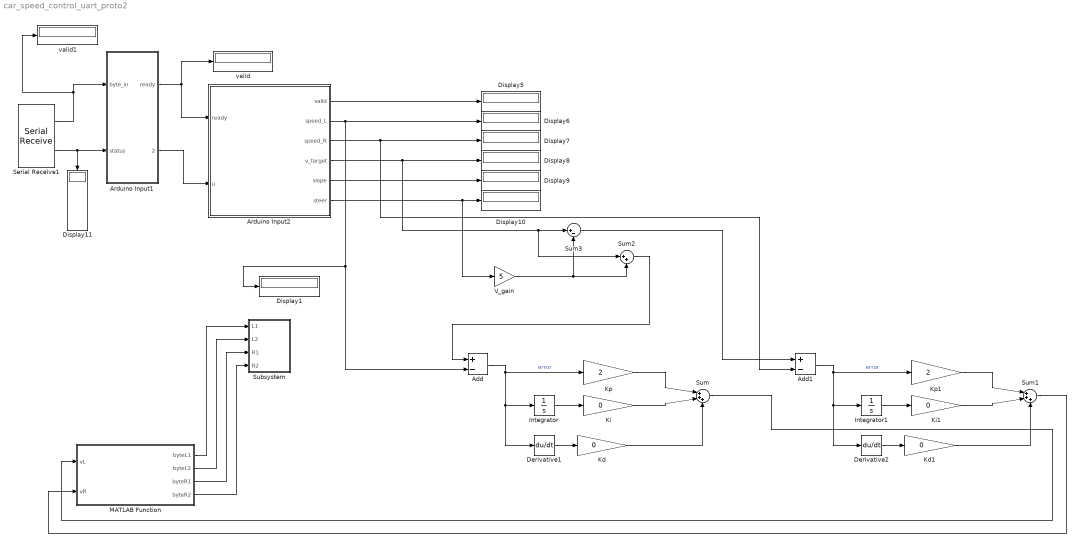
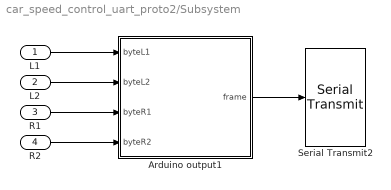
== matlab function car_speed_control_uart_proto2/MATLAB Function ==
function [byteL1, byteL2, byteR1, byteR2] = encode_pwm_duty(vL, vR)
% 입력:
%   vL, vR: mm/s 단위의 속도값 (saturation은 외부에서 처리)
% 출력:
%   byteL1, byteL2: 왼쪽 듀티 (LSB, MSB)
%   byteR1, byteR2: 오른쪽 듀티 (LSB, MSB)

%#codegen
min_duty = 2000;
max_duty = 4000;
v_max = 300;  % 최대 속도(mm/s)

% 왼쪽 듀티 계산
dutyL = uint16(min_duty + (vL / v_max) * (max_duty - min_duty));
byteL2 = bitand(dutyL, 255);         % LSB
byteL1 = bitshift(dutyL, -8);        % MSB

% 오른쪽 듀티 계산
dutyR = uint16(min_duty + (vR / v_max) * (max_duty - min_duty));
byteR2 = bitand(dutyR, 255);
byteR1 = bitshift(dutyR, -8);

== matlab function car_speed_control_uart_proto2/Arduino Input2 ==
function [valid, speed_L, speed_R, v_target, slope, steer] = parseUART_persistent(ready, u)
% UART 패킷 파서 (persistent 방식으로 이전 값 유지)
% u: [10x1] uint8, 패킷 데이터
% ready: 패킷 유효 신호

%#codegen

% 이전 출력값 저장용 persistent 변수
persistent p_valid p_speed_L p_speed_R p_v_target p_slope p_steer

% 초기화 (최초 실행 시)
if isempty(p_valid)
    p_valid = false;
    p_speed_L = 0.0;
    p_speed_R = 0.0;
    p_v_target = 0.0;
    p_slope = uint8(0);
    p_steer = int8(0);
end

% 새로운 데이터가 들어왔을 경우만 업데이트
if ready == 1
        p_valid = true;
        p_speed_L = (double(u(2)) + double(u(3))/100) * 10;
        p_speed_R = (double(u(4)) + double(u(5))/100) * 10;
        p_v_target = double(u(6))*10;
        p_slope = u(7);
        p_steer = int8(u(8));
end

% 항상 마지막 유효 출력 반환
valid     = p_valid;
speed_L   = p_speed_L;
speed_R   = p_speed_R;
v_target  = p_v_target;
slope     = p_slope;
steer     = p_steer;

== matlab function car_speed_control_uart_proto2/Arduino Input1 ==
function [ready, data_out] = uart_parser(byte_in, status)
% UART 프레임 수신기 (Start Byte = 0xAA, Total = 10 bytes)
% 입력: byte_in - 1바이트씩 들어오는 uint8
% 입력: status - Serial Receive의 상태 (1이면 수신 성공)
% 출력: ready - 1이면 패킷 파싱 완료
% 출력: data_out - [1x10] uint8, 패킷 데이터

persistent buffer count collecting

if isempty(buffer)
    buffer = zeros(1, 10, 'uint8');
    count = 0;
    collecting = false;
end

ready = false;
data_out = zeros(1,10,'uint8');

if status == 1
    if ~collecting
        % 아직 수집 시작 전 → start byte 찾기
        if byte_in == hex2dec('AA')
            buffer(1) = byte_in;
            count = 1;
            collecting = true;
        end
    else
        % 수집 중
        count = count + 1;
        buffer(count) = byte_in;

        if count == 10
            data_out = buffer;
            ready = true;
            count = 0;
            collecting = false;
        end
    end
end

== matlab function car_speed_control_uart_proto2/Subsystem/Arduino output1 ==
function frame = makeFrame(byteL1, byteL2, byteR1, byteR2)
% 입력:
%   byteL1, byteL2 : 왼쪽 듀티 (LSB, MSB)
%   byteR1, byteR2 : 오른쪽 듀티 (LSB, MSB)
% 출력:
%   frame: 5-byte UART 프레임 [L_LSB, L_MSB, R_LSB, R_MSB, CRC]

% CRC 계산: 256 - mod(sum(data), 256)
data_sum = double(byteL1) + double(byteL2) + double(byteR1) + double(byteR2);
crc = mod(256 - mod(data_sum, 256), 256);

% 프레임 구성
frame = uint8([byteL1, byteL2, byteR1, byteR2, crc]);
end

/*
 * Academic License - for use in teaching, academic research, and meeting
 * course requirements at degree granting institutions only.  Not for
 * government, commercial, or other organizational use.
 *
 * File: car_speed_control_uart_proto2.c
 *
 * Code generated for Simulink model 'car_speed_control_uart_proto2'.
 *
 * Model version                  : 1.56
 * Simulink Coder version         : 24.2 (R2024b) 21-Jun-2024
 * C/C++ source code generated on : Fri May 23 18:32:13 2025
 *
 * Target selection: ert.tlc
 * Embedded hardware selection: Atmel->AVR
 * Code generation objectives: Unspecified
 * Validation result: Not run
 */

#include "car_speed_control_uart_proto2.h"
#include "rtwtypes.h"
#include "car_speed_control_uart_proto2_private.h"
#include <stddef.h>
#include "rt_nonfinite.h"
#include <math.h>

/* Block signals (default storage) */
B_car_speed_control_uart_prot_T car_speed_control_uart_proto2_B;

/* Continuous states */
X_car_speed_control_uart_prot_T car_speed_control_uart_proto2_X;

/* Disabled State Vector */
XDis_car_speed_control_uart_p_T car_speed_control_uart_pro_XDis;

/* Block states (default storage) */
DW_car_speed_control_uart_pro_T car_speed_control_uart_proto_DW;

/* Real-time model */
static RT_MODEL_car_speed_control_ua_T car_speed_control_uart_proto_M_;
RT_MODEL_car_speed_control_ua_T *const car_speed_control_uart_proto_M =
  &car_speed_control_uart_proto_M_;

/* Forward declaration for local functions */
static real_T car_speed_control_uart_prot_mod(real_T x);
static void rate_monotonic_scheduler(void);

/*
 * Set which subrates need to run this base step (base rate always runs).
 * This function must be called prior to calling the model step function
 * in order to remember which rates need to run this base step.  The
 * buffering of events allows for overlapping preemption.
 */
void car_speed_control_uart_proto2_SetEventsForThisBaseStep(boolean_T
  *eventFlags)
{
  /* Task runs when its counter is zero, computed via rtmStepTask macro */
  eventFlags[2] = ((boolean_T)rtmStepTask(car_speed_control_uart_proto_M, 2));
}

/*
 *         This function updates active task flag for each subrate
 *         and rate transition flags for tasks that exchange data.
 *         The function assumes rate-monotonic multitasking scheduler.
 *         The function must be called at model base rate so that
 *         the generated code self-manages all its subrates and rate
 *         transition flags.
 */
static void rate_monotonic_scheduler(void)
{
  /* To ensure a deterministic data transfer between two rates,
   * data is transferred at the priority of a fast task and the frequency
   * of the slow task.  The following flags indicate when the data transfer
   * happens.  That is, a rate interaction flag is set true when both rates
   * will run, and false otherwise.
   */

  /* tid 1 shares data with slower tid rate: 2 */
  if (car_speed_control_uart_proto_M->Timing.TaskCounters.TID[1] == 0) {
    car_speed_control_uart_proto_M->Timing.RateInteraction.TID1_2 =
      (car_speed_control_uart_proto_M->Timing.TaskCounters.TID[2] == 0);
  }

  /* Compute which subrates run during the next base time step.  Subrates
   * are an integer multiple of the base rate counter.  Therefore, the subtask
   * counter is reset when it reaches its limit (zero means run).
   */
  (car_speed_control_uart_proto_M->Timing.TaskCounters.TID[2])++;
  if ((car_speed_control_uart_proto_M->Timing.TaskCounters.TID[2]) > 9) {/* Sample time: [0.1s, 0.0s] */
    car_speed_control_uart_proto_M->Timing.TaskCounters.TID[2] = 0;
  }
}

/*
 * This function updates continuous states using the ODE3 fixed-step
 * solver algorithm
 */
static void rt_ertODEUpdateContinuousStates(RTWSolverInfo *si )
{
  /* Solver Matrices */
  static const real_T rt_ODE3_A[3] = {
    1.0/2.0, 3.0/4.0, 1.0
  };

  static const real_T rt_ODE3_B[3][3] = {
    { 1.0/2.0, 0.0, 0.0 },

    { 0.0, 3.0/4.0, 0.0 },

    { 2.0/9.0, 1.0/3.0, 4.0/9.0 }
  };

  time_T t = rtsiGetT(si);
  time_T tnew = rtsiGetSolverStopTime(si);
  time_T h = rtsiGetStepSize(si);
  real_T *x = rtsiGetContStates(si);
  ODE3_IntgData *id = (ODE3_IntgData *)rtsiGetSolverData(si);
  real_T *y = id->y;
  real_T *f0 = id->f[0];
  real_T *f1 = id->f[1];
  real_T *f2 = id->f[2];
  real_T hB[3];
  int_T i;
  int_T nXc = 2;
  rtsiSetSimTimeStep(si,MINOR_TIME_STEP);

  /* Save the state values at time t in y, we'll use x as ynew. */
  (void) memcpy(y, x,
                (uint_T)nXc*sizeof(real_T));

  /* Assumes that rtsiSetT and ModelOutputs are up-to-date */
  /* f0 = f(t,y) */
  rtsiSetdX(si, f0);
  car_speed_control_uart_proto2_derivatives();

  /* f(:,2) = feval(odefile, t + hA(1), y + f*hB(:,1), args(:)(*)); */
  hB[0] = h * rt_ODE3_B[0][0];
  for (i = 0; i < nXc; i++) {
    x[i] = y[i] + (f0[i]*hB[0]);
  }

  rtsiSetT(si, t + h*rt_ODE3_A[0]);
  rtsiSetdX(si, f1);
  car_speed_control_uart_proto2_step0();
  car_speed_control_uart_proto2_derivatives();

  /* f(:,3) = feval(odefile, t + hA(2), y + f*hB(:,2), args(:)(*)); */
  for (i = 0; i <= 1; i++) {
    hB[i] = h * rt_ODE3_B[1][i];
  }

  for (i = 0; i < nXc; i++) {
    x[i] = y[i] + (f0[i]*hB[0] + f1[i]*hB[1]);
  }

  rtsiSetT(si, t + h*rt_ODE3_A[1]);
  rtsiSetdX(si, f2);
  car_speed_control_uart_proto2_step0();
  car_speed_control_uart_proto2_derivatives();

  /* tnew = t + hA(3);
     ynew = y + f*hB(:,3); */
  for (i = 0; i <= 2; i++) {
    hB[i] = h * rt_ODE3_B[2][i];
  }

  for (i = 0; i < nXc; i++) {
    x[i] = y[i] + (f0[i]*hB[0] + f1[i]*hB[1] + f2[i]*hB[2]);
  }

  rtsiSetT(si, tnew);
  rtsiSetSimTimeStep(si,MAJOR_TIME_STEP);
}

real_T rt_roundd_snf(real_T u)
{
  real_T y;
  if (fabs(u) < 4.503599627370496E+15) {
    if (u >= 0.5) {
      y = floor(u + 0.5);
    } else if (u > -0.5) {
      y = u * 0.0;
    } else {
      y = ceil(u - 0.5);
    }
  } else {
    y = u;
  }

  return y;
}

/* Function for MATLAB Function: '<S4>/Arduino output1' */
static real_T car_speed_control_uart_prot_mod(real_T x)
{
  real_T r;
  if (rtIsNaN(x)) {
    r = (rtNaN);
  } else if (rtIsInf(x)) {
    r = (rtNaN);
  } else if (x == 0.0) {
    r = 0.0;
  } else {
    r = fmod(x, 256.0);
    if (r == 0.0) {
      r = 0.0;
    } else if (r < 0.0) {
      r += 256.0;
    }
  }

  return r;
}

/* Model step function for TID0 */
void car_speed_control_uart_proto2_step0(void) /* Sample time: [0.0s, 0.0s] */
{
  if (rtmIsMajorTimeStep(car_speed_control_uart_proto_M)) {
    /* set solver stop time */
    rtsiSetSolverStopTime(&car_speed_control_uart_proto_M->solverInfo,
                          ((car_speed_control_uart_proto_M->Timing.clockTick0+1)*
      car_speed_control_uart_proto_M->Timing.stepSize0));

    {                                  /* Sample time: [0.0s, 0.0s] */
      rate_monotonic_scheduler();
    }
  }                                    /* end MajorTimeStep */

  /* Update absolute time of base rate at minor time step */
  if (rtmIsMinorTimeStep(car_speed_control_uart_proto_M)) {
    car_speed_control_uart_proto_M->Timing.t[0] = rtsiGetT
      (&car_speed_control_uart_proto_M->solverInfo);
  }

  {
    real_T rtb_Integrator1;
    real_T rtb_Kd;
    real_T tmp;
    real_T *lastU;
    int16_T i;
    uint16_T tmp_1;
    uint16_T tmp_2;
    uint8_T rtb_data_out[10];
    uint8_T tmp_3;
    boolean_T tmp_0;

    /* RateTransition generated from: '<Root>/Subsystem' */
    tmp_0 = rtmIsMajorTimeStep(car_speed_control_uart_proto_M);
    if (tmp_0) {
      /* MATLABSystem: '<Root>/Serial Receive1' */
      MW_Serial_read(1, 1U, &car_speed_control_uart_proto2_B.SerialReceive1_o1,
                     &car_speed_control_uart_proto2_B.SerialReceive1_o2, NULL,
                     0.0, NULL, 0.0);

      /* MATLAB Function: '<Root>/Arduino Input1' */
      car_speed_control_uart_proto2_B.ready = false;
      for (i = 0; i < 10; i++) {
        rtb_data_out[i] = 0U;
      }

      if (car_speed_control_uart_proto2_B.SerialReceive1_o2 == 1) {
        if (!car_speed_control_uart_proto_DW.collecting) {
          if (car_speed_control_uart_proto2_B.SerialReceive1_o1 == 170) {
            car_speed_control_uart_proto_DW.buffer[0] =
              car_speed_control_uart_proto2_B.SerialReceive1_o1;
            car_speed_control_uart_proto_DW.count = 1.0;
            car_speed_control_uart_proto_DW.collecting = true;
          }
        } else {
          car_speed_control_uart_proto_DW.count++;
          car_speed_control_uart_proto_DW.buffer[(int16_T)
            car_speed_control_uart_proto_DW.count - 1] =
            car_speed_control_uart_proto2_B.SerialReceive1_o1;
          if (car_speed_control_uart_proto_DW.count == 10.0) {
            for (i = 0; i < 10; i++) {
              rtb_data_out[i] = car_speed_control_uart_proto_DW.buffer[i];
            }

            car_speed_control_uart_proto2_B.ready = true;
            car_speed_control_uart_proto_DW.count = 0.0;
            car_speed_control_uart_proto_DW.collecting = false;
          }
        }
      }

      /* End of MATLAB Function: '<Root>/Arduino Input1' */

      /* MATLAB Function: '<Root>/Arduino Input2' */
      if (car_speed_control_uart_proto2_B.ready) {
        car_speed_control_uart_proto_DW.p_valid = true;
        car_speed_control_uart_proto_DW.p_speed_L = ((real_T)rtb_data_out[2] /
          100.0 + (real_T)rtb_data_out[1]) * 10.0;
        car_speed_control_uart_proto_DW.p_speed_R = ((real_T)rtb_data_out[4] /
          100.0 + (real_T)rtb_data_out[3]) * 10.0;
        car_speed_control_uart_proto_DW.p_v_target = (real_T)rtb_data_out[5] *
          10.0;
        car_speed_control_uart_proto_DW.p_slope = rtb_data_out[6];
        tmp_3 = rtb_data_out[7];
        if (rtb_data_out[7] > 127) {
          tmp_3 = 127U;
        }

        car_speed_control_uart_proto_DW.p_steer = (int8_T)tmp_3;
      }

      car_speed_control_uart_proto2_B.valid =
        car_speed_control_uart_proto_DW.p_valid;
      car_speed_control_uart_proto2_B.speed_L =
        car_speed_control_uart_proto_DW.p_speed_L;
      car_speed_control_uart_proto2_B.speed_R =
        car_speed_control_uart_proto_DW.p_speed_R;
      car_speed_control_uart_proto2_B.v_target =
        car_speed_control_uart_proto_DW.p_v_target;
      car_speed_control_uart_proto2_B.slope =
        car_speed_control_uart_proto_DW.p_slope;
      car_speed_control_uart_proto2_B.steer =
        car_speed_control_uart_proto_DW.p_steer;

      /* End of MATLAB Function: '<Root>/Arduino Input2' */
      /* Gain: '<Root>/V_gain' */
      i = car_speed_control_uart_proto2_P.V_gain_Gain *
        car_speed_control_uart_proto2_B.steer;

      /* Sum: '<Root>/Add' incorporates:
       *  Gain: '<Root>/V_gain'
       *  Sum: '<Root>/Sum2'
       */
      car_speed_control_uart_proto2_B.error = ((real_T)i * 0.0625 +
        car_speed_control_uart_proto2_B.v_target) -
        car_speed_control_uart_proto2_B.speed_L;
    }

    /* Derivative: '<Root>/Derivative1' incorporates:
     *  Derivative: '<Root>/Derivative2'
     */
    tmp = car_speed_control_uart_proto_M->Timing.t[0];
    if ((car_speed_control_uart_proto_DW.TimeStampA >= tmp) &&
        (car_speed_control_uart_proto_DW.TimeStampB >= tmp)) {
      rtb_Integrator1 = 0.0;
    } else {
      rtb_Integrator1 = car_speed_control_uart_proto_DW.TimeStampA;
      lastU = &car_speed_control_uart_proto_DW.LastUAtTimeA;
      if (car_speed_control_uart_proto_DW.TimeStampA <
          car_speed_control_uart_proto_DW.TimeStampB) {
        if (car_speed_control_uart_proto_DW.TimeStampB < tmp) {
          rtb_Integrator1 = car_speed_control_uart_proto_DW.TimeStampB;
          lastU = &car_speed_control_uart_proto_DW.LastUAtTimeB;
        }
      } else if (car_speed_control_uart_proto_DW.TimeStampA >= tmp) {
        rtb_Integrator1 = car_speed_control_uart_proto_DW.TimeStampB;
        lastU = &car_speed_control_uart_proto_DW.LastUAtTimeB;
      }

      rtb_Integrator1 = (car_speed_control_uart_proto2_B.error - *lastU) / (tmp
        - rtb_Integrator1);
    }

    /* End of Derivative: '<Root>/Derivative1' */

    /* Gain: '<Root>/Kd' */
    rtb_Kd = car_speed_control_uart_proto2_P.Kd_Gain * rtb_Integrator1;
    if (tmp_0) {
      /* Gain: '<Root>/Kp' */
      car_speed_control_uart_proto2_B.Kp =
        car_speed_control_uart_proto2_P.Kp_Gain *
        car_speed_control_uart_proto2_B.error;

      /* Sum: '<Root>/Add1' incorporates:
       *  Gain: '<Root>/V_gain'
       *  Sum: '<Root>/Sum3'
       */
      car_speed_control_uart_proto2_B.error_j =
        (car_speed_control_uart_proto2_B.v_target - (real_T)i * 0.0625) -
        car_speed_control_uart_proto2_B.speed_R;
    }

    /* Derivative: '<Root>/Derivative2' */
    if ((car_speed_control_uart_proto_DW.TimeStampA_l >= tmp) &&
        (car_speed_control_uart_proto_DW.TimeStampB_i >= tmp)) {
      rtb_Integrator1 = 0.0;
    } else {
      rtb_Integrator1 = car_speed_control_uart_proto_DW.TimeStampA_l;
      lastU = &car_speed_control_uart_proto_DW.LastUAtTimeA_k;
      if (car_speed_control_uart_proto_DW.TimeStampA_l <
          car_speed_control_uart_proto_DW.TimeStampB_i) {
        if (car_speed_control_uart_proto_DW.TimeStampB_i < tmp) {
          rtb_Integrator1 = car_speed_control_uart_proto_DW.TimeStampB_i;
          lastU = &car_speed_control_uart_proto_DW.LastUAtTimeB_o;
        }
      } else if (car_speed_control_uart_proto_DW.TimeStampA_l >= tmp) {
        rtb_Integrator1 = car_speed_control_uart_proto_DW.TimeStampB_i;
        lastU = &car_speed_control_uart_proto_DW.LastUAtTimeB_o;
      }

      rtb_Integrator1 = (car_speed_control_uart_proto2_B.error_j - *lastU) /
        (tmp - rtb_Integrator1);
    }

    if (tmp_0) {
      /* Gain: '<Root>/Kp1' */
      car_speed_control_uart_proto2_B.Kp1 =
        car_speed_control_uart_proto2_P.Kp1_Gain *
        car_speed_control_uart_proto2_B.error_j;
    }

    /* MATLAB Function: '<Root>/MATLAB Function' incorporates:
     *  Gain: '<Root>/Kd1'
     *  Gain: '<Root>/Ki'
     *  Gain: '<Root>/Ki1'
     *  Integrator: '<Root>/Integrator'
     *  Integrator: '<Root>/Integrator1'
     *  Sum: '<Root>/Sum'
     *  Sum: '<Root>/Sum1'
     */
    tmp = rt_roundd_snf(((car_speed_control_uart_proto2_P.Ki_Gain *
                          car_speed_control_uart_proto2_X.Integrator_CSTATE +
                          car_speed_control_uart_proto2_B.Kp) + rtb_Kd) / 300.0 *
                        2000.0 + 2000.0);
    if (tmp < 65536.0) {
      if (tmp >= 0.0) {
        tmp_2 = (uint16_T)tmp;
      } else {
        tmp_2 = 0U;
      }
    } else {
      tmp_2 = MAX_uint16_T;
    }

    tmp = rt_roundd_snf(((car_speed_control_uart_proto2_P.Ki1_Gain *
                          car_speed_control_uart_proto2_X.Integrator1_CSTATE +
                          car_speed_control_uart_proto2_B.Kp1) +
                         car_speed_control_uart_proto2_P.Kd1_Gain *
                         rtb_Integrator1) / 300.0 * 2000.0 + 2000.0);
    if (tmp < 65536.0) {
      if (tmp >= 0.0) {
        tmp_1 = (uint16_T)tmp;
      } else {
        tmp_1 = 0U;
      }
    } else {
      tmp_1 = MAX_uint16_T;
    }

    /* RateTransition generated from: '<Root>/Subsystem' incorporates:
     *  MATLAB Function: '<Root>/MATLAB Function'
     */
    if (tmp_0) {
      if (car_speed_control_uart_proto_M->Timing.RateInteraction.TID1_2) {
        car_speed_control_uart_proto_DW.byteL1_Buffer = tmp_2 >> 8;

        /* RateTransition generated from: '<Root>/Subsystem' incorporates:
         *  MATLAB Function: '<Root>/MATLAB Function'
         */
        car_speed_control_uart_proto_DW.byteL2_Buffer = tmp_2 & 255U;

        /* RateTransition generated from: '<Root>/Subsystem' incorporates:
         *  MATLAB Function: '<Root>/MATLAB Function'
         */
        car_speed_control_uart_proto_DW.byteR1_Buffer = tmp_1 >> 8;

        /* RateTransition generated from: '<Root>/Subsystem' incorporates:
         *  MATLAB Function: '<Root>/MATLAB Function'
         */
        car_speed_control_uart_proto_DW.byteR2_Buffer = tmp_1 & 255U;
      }
    }
  }

  if (rtmIsMajorTimeStep(car_speed_control_uart_proto_M)) {
    real_T *lastU;

    /* Update for Derivative: '<Root>/Derivative1' */
    if (car_speed_control_uart_proto_DW.TimeStampA == (rtInf)) {
      car_speed_control_uart_proto_DW.TimeStampA =
        car_speed_control_uart_proto_M->Timing.t[0];
      lastU = &car_speed_control_uart_proto_DW.LastUAtTimeA;
    } else if (car_speed_control_uart_proto_DW.TimeStampB == (rtInf)) {
      car_speed_control_uart_proto_DW.TimeStampB =
        car_speed_control_uart_proto_M->Timing.t[0];
      lastU = &car_speed_control_uart_proto_DW.LastUAtTimeB;
    } else if (car_speed_control_uart_proto_DW.TimeStampA <
               car_speed_control_uart_proto_DW.TimeStampB) {
      car_speed_control_uart_proto_DW.TimeStampA =
        car_speed_control_uart_proto_M->Timing.t[0];
      lastU = &car_speed_control_uart_proto_DW.LastUAtTimeA;
    } else {
      car_speed_control_uart_proto_DW.TimeStampB =
        car_speed_control_uart_proto_M->Timing.t[0];
      lastU = &car_speed_control_uart_proto_DW.LastUAtTimeB;
    }

    *lastU = car_speed_control_uart_proto2_B.error;

    /* End of Update for Derivative: '<Root>/Derivative1' */

    /* Update for Derivative: '<Root>/Derivative2' */
    if (car_speed_control_uart_proto_DW.TimeStampA_l == (rtInf)) {
      car_speed_control_uart_proto_DW.TimeStampA_l =
        car_speed_control_uart_proto_M->Timing.t[0];
      lastU = &car_speed_control_uart_proto_DW.LastUAtTimeA_k;
    } else if (car_speed_control_uart_proto_DW.TimeStampB_i == (rtInf)) {
      car_speed_control_uart_proto_DW.TimeStampB_i =
        car_speed_control_uart_proto_M->Timing.t[0];
      lastU = &car_speed_control_uart_proto_DW.LastUAtTimeB_o;
    } else if (car_speed_control_uart_proto_DW.TimeStampA_l <
               car_speed_control_uart_proto_DW.TimeStampB_i) {
      car_speed_control_uart_proto_DW.TimeStampA_l =
        car_speed_control_uart_proto_M->Timing.t[0];
      lastU = &car_speed_control_uart_proto_DW.LastUAtTimeA_k;
    } else {
      car_speed_control_uart_proto_DW.TimeStampB_i =
        car_speed_control_uart_proto_M->Timing.t[0];
      lastU = &car_speed_control_uart_proto_DW.LastUAtTimeB_o;
    }

    *lastU = car_speed_control_uart_proto2_B.error_j;

    /* End of Update for Derivative: '<Root>/Derivative2' */
    {
      extmodeErrorCode_T returnCode = EXTMODE_SUCCESS;
      extmodeSimulationTime_T extmodeTime = (extmodeSimulationTime_T)
        ((car_speed_control_uart_proto_M->Timing.clockTick1 * 1) + 0);

      /* Trigger External Mode event */
      returnCode = extmodeEvent(1, extmodeTime);
      if (returnCode != EXTMODE_SUCCESS) {
        /* Code to handle External Mode event errors
           may be added here */
      }
    }
  }                                    /* end MajorTimeStep */

  if (rtmIsMajorTimeStep(car_speed_control_uart_proto_M)) {
    rt_ertODEUpdateContinuousStates(&car_speed_control_uart_proto_M->solverInfo);

    /* Update absolute time */
    /* The "clockTick0" counts the number of times the code of this task has
     * been executed. The absolute time is the multiplication of "clockTick0"
     * and "Timing.stepSize0". Size of "clockTick0" ensures timer will not
     * overflow during the application lifespan selected.
     */
    ++car_speed_control_uart_proto_M->Timing.clockTick0;
    car_speed_control_uart_proto_M->Timing.t[0] = rtsiGetSolverStopTime
      (&car_speed_control_uart_proto_M->solverInfo);

    /* Update absolute time */
    /* The "clockTick1" counts the number of times the code of this task has
     * been executed. The resolution of this integer timer is 0.01, which is the step size
     * of the task. Size of "clockTick1" ensures timer will not overflow during the
     * application lifespan selected.
     */
    car_speed_control_uart_proto_M->Timing.clockTick1++;
  }                                    /* end MajorTimeStep */
}

/* Derivatives for root system: '<Root>' */
void car_speed_control_uart_proto2_derivatives(void)
{
  XDot_car_speed_control_uart_p_T *_rtXdot;
  _rtXdot = ((XDot_car_speed_control_uart_p_T *)
             car_speed_control_uart_proto_M->derivs);

  /* Derivatives for Integrator: '<Root>/Integrator' */
  _rtXdot->Integrator_CSTATE = car_speed_control_uart_proto2_B.error;

  /* Derivatives for Integrator: '<Root>/Integrator1' */
  _rtXdot->Integrator1_CSTATE = car_speed_control_uart_proto2_B.error_j;
}

/* Model step function for TID2 */
void car_speed_control_uart_proto2_step2(void) /* Sample time: [0.1s, 0.0s] */
{
  real_T tmp;
  uint16_T tmp_0;
  uint8_T dataIn[5];
  uint8_T varargin_10;
  uint8_T varargin_9;

  /* Outputs for Atomic SubSystem: '<Root>/Subsystem' */
  /* MATLABSystem: '<S4>/Serial Transmit2' */
  varargin_9 = 85U;
  varargin_10 = 170U;

  /* MATLAB Function: '<S4>/Arduino output1' incorporates:
   *  RateTransition generated from: '<Root>/Subsystem'
   */
  tmp_0 = car_speed_control_uart_proto_DW.byteL1_Buffer;
  if (car_speed_control_uart_proto_DW.byteL1_Buffer > 255U) {
    tmp_0 = 255U;
  }

  /* MATLABSystem: '<S4>/Serial Transmit2' incorporates:
   *  MATLAB Function: '<S4>/Arduino output1'
   */
  dataIn[0] = (uint8_T)tmp_0;

  /* MATLAB Function: '<S4>/Arduino output1' incorporates:
   *  RateTransition generated from: '<Root>/Subsystem'
   */
  tmp_0 = car_speed_control_uart_proto_DW.byteL2_Buffer;
  if (car_speed_control_uart_proto_DW.byteL2_Buffer > 255U) {
    tmp_0 = 255U;
  }

  /* MATLABSystem: '<S4>/Serial Transmit2' incorporates:
   *  MATLAB Function: '<S4>/Arduino output1'
   */
  dataIn[1] = (uint8_T)tmp_0;

  /* MATLAB Function: '<S4>/Arduino output1' incorporates:
   *  RateTransition generated from: '<Root>/Subsystem'
   */
  tmp_0 = car_speed_control_uart_proto_DW.byteR1_Buffer;
  if (car_speed_control_uart_proto_DW.byteR1_Buffer > 255U) {
    tmp_0 = 255U;
  }

  /* MATLABSystem: '<S4>/Serial Transmit2' incorporates:
   *  MATLAB Function: '<S4>/Arduino output1'
   */
  dataIn[2] = (uint8_T)tmp_0;

  /* MATLAB Function: '<S4>/Arduino output1' incorporates:
   *  RateTransition generated from: '<Root>/Subsystem'
   */
  tmp_0 = car_speed_control_uart_proto_DW.byteR2_Buffer;
  if (car_speed_control_uart_proto_DW.byteR2_Buffer > 255U) {
    tmp_0 = 255U;
  }

  /* MATLABSystem: '<S4>/Serial Transmit2' incorporates:
   *  MATLAB Function: '<S4>/Arduino output1'
   */
  dataIn[3] = (uint8_T)tmp_0;

  /* MATLAB Function: '<S4>/Arduino output1' incorporates:
   *  RateTransition generated from: '<Root>/Subsystem'
   * */
  tmp = rt_roundd_snf(car_speed_control_uart_prot_mod(256.0 -
    car_speed_control_uart_prot_mod((real_T)((((int32_T)
    car_speed_control_uart_proto_DW.byteL1_Buffer +
    car_speed_control_uart_proto_DW.byteL2_Buffer) +
    car_speed_control_uart_proto_DW.byteR1_Buffer) +
    car_speed_control_uart_proto_DW.byteR2_Buffer))));
  if (tmp < 65536.0) {
    if (tmp >= 0.0) {
      tmp_0 = (uint16_T)tmp;
    } else {
      tmp_0 = 0U;
    }
  } else {
    tmp_0 = MAX_uint16_T;
  }

  if (tmp_0 > 255U) {
    tmp_0 = 255U;
  }

  /* MATLABSystem: '<S4>/Serial Transmit2' incorporates:
   *  MATLAB Function: '<S4>/Arduino output1'
   */
  dataIn[4] = (uint8_T)tmp_0;
  MW_Serial_write(car_speed_control_uart_proto_DW.obj.port, &dataIn[0], 5.0,
                  car_speed_control_uart_proto_DW.obj.dataSizeInBytes,
                  car_speed_control_uart_proto_DW.obj.sendModeEnum,
                  car_speed_control_uart_proto_DW.obj.dataType,
                  car_speed_control_uart_proto_DW.obj.sendFormatEnum, 2.0,
                  '\x00', &varargin_9, 1.0, &varargin_10, 1.0);

  /* End of Outputs for SubSystem: '<Root>/Subsystem' */

  /* Update absolute time */
  /* The "clockTick2" counts the number of times the code of this task has
   * been executed. The resolution of this integer timer is 0.1, which is the step size
   * of the task. Size of "clockTick2" ensures timer will not overflow during the
   * application lifespan selected.
   */
  car_speed_control_uart_proto_M->Timing.clockTick2++;
}
